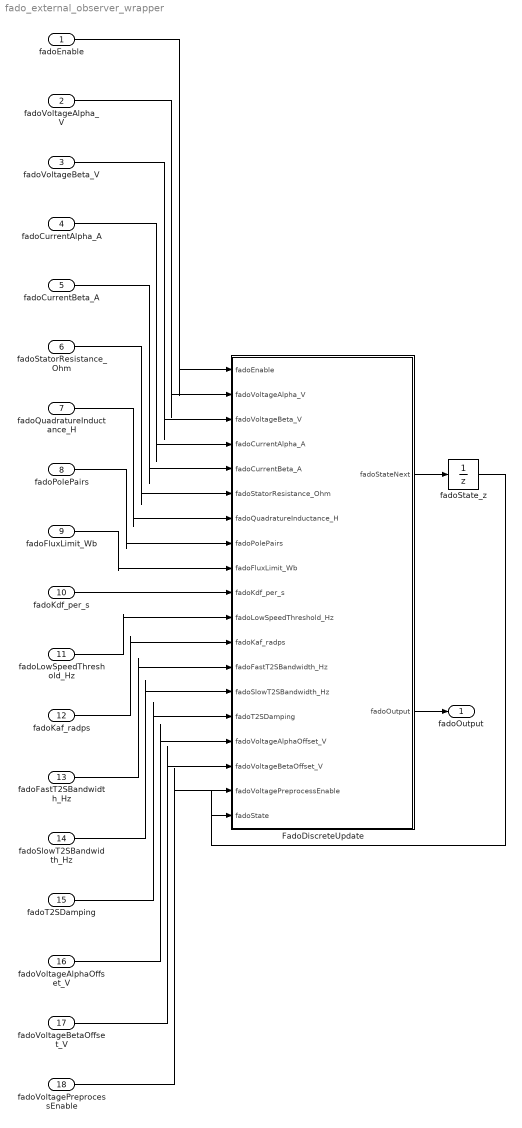
== matlab function fado_external_observer_wrapper/FadoDiscreteUpdate ==
function [fadoStateNext, fadoOutput] = fcn(fadoEnable, fadoVoltageAlpha_V, fadoVoltageBeta_V, fadoCurrentAlpha_A, fadoCurrentBeta_A, fadoStatorResistance_Ohm, fadoQuadratureInductance_H, fadoPolePairs, fadoFluxLimit_Wb, fadoKdf_per_s, fadoLowSpeedThreshold_Hz, fadoKaf_radps, fadoFastT2SBandwidth_Hz, fadoSlowT2SBandwidth_Hz, fadoT2SDamping, fadoVoltageAlphaOffset_V, fadoVoltageBetaOffset_V, fadoVoltagePreprocessEnable, fadoState)
%#codegen
[fadoStateNext, fadoOutput] = fado_external_observer_discrete_update(fadoEnable, fadoVoltageAlpha_V, fadoVoltageBeta_V, fadoCurrentAlpha_A, fadoCurrentBeta_A, fadoStatorResistance_Ohm, fadoQuadratureInductance_H, fadoPolePairs, fadoFluxLimit_Wb, fadoKdf_per_s, fadoLowSpeedThreshold_Hz, fadoKaf_radps, fadoFastT2SBandwidth_Hz, fadoSlowT2SBandwidth_Hz, fadoT2SDamping, fadoVoltageAlphaOffset_V, fadoVoltageBetaOffset_V, fadoVoltagePreprocessEnable, fadoState);
end

/*
 * Academic License - for use in teaching, academic research, and meeting
 * course requirements at degree granting institutions only.  Not for
 * government, commercial, or other organizational use.
 *
 * File: fado_external_observer_wrapper.c
 *
 * Code generated for Simulink model 'fado_external_observer_wrapper'.
 *
 * Model version                  : 1.4
 * Simulink Coder version         : 26.1 (R2026a) 20-Nov-2025
 * C/C++ source code generated on : Mon Aug  3 16:44:39 2026
 *
 * Target selection: ert.tlc
 * Embedded hardware selection: ARM Compatible->ARM Cortex-M
 * Code generation objectives: Unspecified
 * Validation result: Not run
 */

#include "fado_external_observer_wrapper.h"
#include "rtwtypes.h"
#include <string.h>
#include "rt_nonfinite.h"
#include <math.h>
#include "fado_external_observer_wrapper_private.h"
#include "rt_defines.h"

/* Block states (default storage) */
DW_fado_external_observer_wra_T fado_external_observer_wrapp_DW;

/* External inputs (root inport signals with default storage) */
ExtU_fado_external_observer_w_T fado_external_observer_wrappe_U;

/* External outputs (root outports fed by signals with default storage) */
ExtY_fado_external_observer_w_T fado_external_observer_wrappe_Y;

/* Real-time model */
static RT_MODEL_fado_external_observ_T fado_external_observer_wrapp_M_;
RT_MODEL_fado_external_observ_T *const fado_external_observer_wrapp_M =
  &fado_external_observer_wrapp_M_;

/* Forward declaration for local functions */
static real32_T fado_external_observer_wrap_mod(real32_T x);
real32_T rt_atan2f_snf(real32_T u0, real32_T u1)
{
  real32_T y;
  if (rtIsNaNF(u0) || rtIsNaNF(u1)) {
    y = (rtNaNF);
  } else if (rtIsInfF(u0) && rtIsInfF(u1)) {
    int32_T tmp;
    int32_T tmp_0;
    if (u0 > 0.0F) {
      tmp = 1;
    } else {
      tmp = -1;
    }

    if (u1 > 0.0F) {
      tmp_0 = 1;
    } else {
      tmp_0 = -1;
    }

    y = atan2f((real32_T)tmp, (real32_T)tmp_0);
  } else if (u1 == 0.0F) {
    if (u0 > 0.0F) {
      y = RT_PIF / 2.0F;
    } else if (u0 < 0.0F) {
      y = -(RT_PIF / 2.0F);
    } else {
      y = 0.0F;
    }
  } else {
    y = atan2f(u0, u1);
  }

  return y;
}

/* Function for MATLAB Function: '<Root>/FadoDiscreteUpdate' */
static real32_T fado_external_observer_wrap_mod(real32_T x)
{
  real32_T r;
  if (rtIsNaNF(x)) {
    r = (rtNaNF);
  } else if (rtIsInfF(x)) {
    r = (rtNaNF);
  } else {
    /* T2S angles are normalized every sample, so the normal path is at most
     * one turn outside [0, 2*pi). Keep fmodf only as an abnormal fallback. */
    r = x;
    if (r >= 6.2831855F) {
      r -= 6.2831855F;
    } else if (r < 0.0F) {
      r += 6.2831855F;
    }

    if ((r >= 6.2831855F) || (r < 0.0F)) {
      r = fmodf(r, 6.2831855F);
      if (r < 0.0F) {
        r += 6.2831855F;
      }
    }
  }

  return r;
}

/* Model step function */
void fado_external_observer_wrapper_step(void)
{
  int32_T i;
  real32_T rtb_fadoState_z[10];
  real32_T fadoDhatAlpha_Wb;
  real32_T fadoFastNaturalFrequency_radps;
  real32_T fadoFastPhaseError_rad;
  real32_T fadoLambdaAlpha1_Wb;
  real32_T fadoLambdaAlphaDot_V;
  real32_T fadoOmegaFast_radps;
  real32_T fadoOmegaSlow_radps;
  real32_T fadoRotorFluxAlphaLimited_Wb;
  real32_T fadoRotorFluxAlpha_Wb;
  real32_T fadoRotorFluxBetaLimited_Wb;
  real32_T fadoRotorFluxBeta_Wb;
  real32_T fadoRotorFluxBeta_Wb_tmp;
  real32_T fadoRotorFluxMag_Wb;
  real32_T fadoThetaDirect_rad;
  boolean_T b[10];
  boolean_T c[10];
  boolean_T exitg1;
  boolean_T fadoFluxLimited;
  boolean_T fadoKafMode;
  boolean_T y;

  /* MATLAB Function: '<Root>/FadoDiscreteUpdate' incorporates:
   *  Inport: '<Root>/fadoVoltageAlpha_V'
   *  Inport: '<Root>/fadoVoltageBeta_V'
   */
  fadoLambdaAlphaDot_V = fado_external_observer_wrappe_U.fadoVoltageAlpha_V;
  fadoLambdaAlpha1_Wb = fado_external_observer_wrappe_U.fadoVoltageBeta_V;
  for (i = 0; i < 10; i++) {
    /* UnitDelay: '<Root>/fadoState_z' */
    rtb_fadoState_z[i] = fado_external_observer_wrapp_DW.fadoState_z[i];

    /* MATLAB Function: '<Root>/FadoDiscreteUpdate' incorporates:
     *  UnitDelay: '<Root>/fadoState_z'
     */
    fado_external_observer_wrapp_DW.fadoState_z[i] = 0.0F;
  }

  /* Outport: '<Root>/fadoOutput' incorporates:
   *  MATLAB Function: '<Root>/FadoDiscreteUpdate'
   */
  memset(&fado_external_observer_wrappe_Y.fadoOutput[0], 0, 18U * sizeof
         (real32_T));

  /* MATLAB Function: '<Root>/FadoDiscreteUpdate' incorporates:
   *  Inport: '<Root>/fadoCurrentAlpha_A'
   *  Inport: '<Root>/fadoCurrentBeta_A'
   *  Inport: '<Root>/fadoEnable'
   *  Inport: '<Root>/fadoFastT2SBandwidth_Hz'
   *  Inport: '<Root>/fadoFluxLimit_Wb'
   *  Inport: '<Root>/fadoKaf_radps'
   *  Inport: '<Root>/fadoKdf_per_s'
   *  Inport: '<Root>/fadoLowSpeedThreshold_Hz'
   *  Inport: '<Root>/fadoPolePairs'
   *  Inport: '<Root>/fadoQuadratureInductance_H'
   *  Inport: '<Root>/fadoSlowT2SBandwidth_Hz'
   *  Inport: '<Root>/fadoStatorResistance_Ohm'
   *  Inport: '<Root>/fadoT2SDamping'
   *  Inport: '<Root>/fadoVoltageAlphaOffset_V'
   *  Inport: '<Root>/fadoVoltageAlpha_V'
   *  Inport: '<Root>/fadoVoltageBetaOffset_V'
   *  Inport: '<Root>/fadoVoltageBeta_V'
   *  Inport: '<Root>/fadoVoltagePreprocessEnable'
   *  Outport: '<Root>/fadoOutput'
   *  UnitDelay: '<Root>/fadoState_z'
   */
  if (fado_external_observer_wrappe_U.fadoEnable) {
    fado_external_observer_wrappe_Y.fadoOutput[17] = 1.0F;
    if (rtIsInfF(fado_external_observer_wrappe_U.fadoStatorResistance_Ohm) ||
        rtIsNaNF(fado_external_observer_wrappe_U.fadoStatorResistance_Ohm) ||
        (rtIsInfF(fado_external_observer_wrappe_U.fadoQuadratureInductance_H) ||
         rtIsNaNF(fado_external_observer_wrappe_U.fadoQuadratureInductance_H) ||
         (rtIsInfF(fado_external_observer_wrappe_U.fadoFluxLimit_Wb) || rtIsNaNF
          (fado_external_observer_wrappe_U.fadoFluxLimit_Wb) || (rtIsInfF
           (fado_external_observer_wrappe_U.fadoKdf_per_s) || rtIsNaNF
           (fado_external_observer_wrappe_U.fadoKdf_per_s) || (rtIsInfF
            (fado_external_observer_wrappe_U.fadoLowSpeedThreshold_Hz) ||
            rtIsNaNF(fado_external_observer_wrappe_U.fadoLowSpeedThreshold_Hz) ||
            (rtIsInfF(fado_external_observer_wrappe_U.fadoKaf_radps) || rtIsNaNF
             (fado_external_observer_wrappe_U.fadoKaf_radps) || (rtIsInfF
              (fado_external_observer_wrappe_U.fadoFastT2SBandwidth_Hz) ||
              rtIsNaNF(fado_external_observer_wrappe_U.fadoFastT2SBandwidth_Hz) ||
              (rtIsInfF(fado_external_observer_wrappe_U.fadoSlowT2SBandwidth_Hz)
               || rtIsNaNF
               (fado_external_observer_wrappe_U.fadoSlowT2SBandwidth_Hz) ||
               (rtIsInfF(fado_external_observer_wrappe_U.fadoT2SDamping) ||
                rtIsNaNF(fado_external_observer_wrappe_U.fadoT2SDamping) ||
                (rtIsInfF
                 (fado_external_observer_wrappe_U.fadoVoltageAlphaOffset_V) ||
                 rtIsNaNF
                 (fado_external_observer_wrappe_U.fadoVoltageAlphaOffset_V) ||
                 (rtIsInfF
                  (fado_external_observer_wrappe_U.fadoVoltageBetaOffset_V) ||
                  rtIsNaNF
                  (fado_external_observer_wrappe_U.fadoVoltageBetaOffset_V) || (
        !(fado_external_observer_wrappe_U.fadoStatorResistance_Ohm > 0.0F) ||
        !(fado_external_observer_wrappe_U.fadoQuadratureInductance_H > 0.0F) ||
        (fado_external_observer_wrappe_U.fadoPolePairs <= 0) ||
        !(fado_external_observer_wrappe_U.fadoFluxLimit_Wb > 0.0F) ||
        !(fado_external_observer_wrappe_U.fadoKdf_per_s >= 0.0F) ||
        !(fado_external_observer_wrappe_U.fadoLowSpeedThreshold_Hz >= 0.0F) ||
        !(fado_external_observer_wrappe_U.fadoKaf_radps > 0.0F) ||
        !(fado_external_observer_wrappe_U.fadoFastT2SBandwidth_Hz > 0.0F) ||
        !(fado_external_observer_wrappe_U.fadoSlowT2SBandwidth_Hz > 0.0F) ||
        !(fado_external_observer_wrappe_U.fadoT2SDamping > 0.0F))))))))))))) {
      fado_external_observer_wrappe_Y.fadoOutput[16] = 3.0F;
    } else {
      if (fado_external_observer_wrappe_U.fadoVoltagePreprocessEnable) {
        fadoLambdaAlphaDot_V =
          fado_external_observer_wrappe_U.fadoVoltageAlpha_V +
          fado_external_observer_wrappe_U.fadoVoltageAlphaOffset_V;
        fadoLambdaAlpha1_Wb = fado_external_observer_wrappe_U.fadoVoltageBeta_V
          + fado_external_observer_wrappe_U.fadoVoltageBetaOffset_V;
      }

      fadoDhatAlpha_Wb = fabsf(rtb_fadoState_z[8]);
      fadoKafMode = (fadoDhatAlpha_Wb <= 6.2831855F *
                     fado_external_observer_wrappe_U.fadoLowSpeedThreshold_Hz);
      fadoFluxLimited = false;
      fadoOmegaFast_radps =
        fado_external_observer_wrappe_U.fadoQuadratureInductance_H *
        fado_external_observer_wrappe_U.fadoCurrentAlpha_A;
      fadoRotorFluxAlpha_Wb = (rtb_fadoState_z[0] - rtb_fadoState_z[4]) -
        fadoOmegaFast_radps;
      fadoRotorFluxBeta_Wb_tmp =
        fado_external_observer_wrappe_U.fadoQuadratureInductance_H *
        fado_external_observer_wrappe_U.fadoCurrentBeta_A;
      fadoRotorFluxBeta_Wb = (rtb_fadoState_z[1] - rtb_fadoState_z[5]) -
        fadoRotorFluxBeta_Wb_tmp;
      fadoRotorFluxMag_Wb = sqrtf(fadoRotorFluxAlpha_Wb * fadoRotorFluxAlpha_Wb
        + fadoRotorFluxBeta_Wb * fadoRotorFluxBeta_Wb);
      if (fadoKafMode) {
        fadoRotorFluxAlphaLimited_Wb = fadoRotorFluxAlpha_Wb;
        fadoRotorFluxBetaLimited_Wb = fadoRotorFluxBeta_Wb;
        if (fadoRotorFluxMag_Wb >
            fado_external_observer_wrappe_U.fadoFluxLimit_Wb) {
          fadoRotorFluxBetaLimited_Wb =
            fado_external_observer_wrappe_U.fadoFluxLimit_Wb /
            fadoRotorFluxMag_Wb;
          fadoRotorFluxAlphaLimited_Wb = fadoRotorFluxAlpha_Wb *
            fadoRotorFluxBetaLimited_Wb;
          fadoRotorFluxBetaLimited_Wb *= fadoRotorFluxBeta_Wb;
          fadoFluxLimited = true;
        }

        fadoLambdaAlphaDot_V = (fadoLambdaAlphaDot_V -
          fado_external_observer_wrappe_U.fadoStatorResistance_Ohm *
          fado_external_observer_wrappe_U.fadoCurrentAlpha_A) -
          (fadoRotorFluxAlpha_Wb - fadoRotorFluxAlphaLimited_Wb) *
          fado_external_observer_wrappe_U.fadoKaf_radps;
        fadoRotorFluxAlpha_Wb = (fadoLambdaAlpha1_Wb -
          fado_external_observer_wrappe_U.fadoStatorResistance_Ohm *
          fado_external_observer_wrappe_U.fadoCurrentBeta_A) -
          (fadoRotorFluxBeta_Wb - fadoRotorFluxBetaLimited_Wb) *
          fado_external_observer_wrappe_U.fadoKaf_radps;
        fadoRotorFluxBeta_Wb = 0.0F;
      } else {
        fadoRotorFluxBeta_Wb = fado_external_observer_wrappe_U.fadoKdf_per_s;
        fadoLambdaAlphaDot_V = (fadoLambdaAlphaDot_V -
          fado_external_observer_wrappe_U.fadoStatorResistance_Ohm *
          fado_external_observer_wrappe_U.fadoCurrentAlpha_A) -
          fado_external_observer_wrappe_U.fadoKdf_per_s * rtb_fadoState_z[4];
        fadoRotorFluxAlpha_Wb = (fadoLambdaAlpha1_Wb -
          fado_external_observer_wrappe_U.fadoStatorResistance_Ohm *
          fado_external_observer_wrappe_U.fadoCurrentBeta_A) -
          fado_external_observer_wrappe_U.fadoKdf_per_s * rtb_fadoState_z[5];
      }

      fadoLambdaAlpha1_Wb = 5.0E-5F * fadoLambdaAlphaDot_V + rtb_fadoState_z[0];
      fadoLambdaAlphaDot_V = 5.0E-5F * fadoRotorFluxAlpha_Wb + rtb_fadoState_z[1];
      fadoRotorFluxAlphaLimited_Wb = fadoLambdaAlpha1_Wb - rtb_fadoState_z[2];
      fadoRotorFluxAlpha_Wb = fadoLambdaAlphaDot_V - rtb_fadoState_z[3];
      fadoDhatAlpha_Wb *= 2.0F;
      fado_external_observer_wrapp_DW.fadoState_z[2] = (((-rtb_fadoState_z[8] *
        rtb_fadoState_z[3] + rtb_fadoState_z[5] * rtb_fadoState_z[8]) +
        fadoDhatAlpha_Wb * fadoRotorFluxAlphaLimited_Wb) - rtb_fadoState_z[8] *
        fadoRotorFluxAlpha_Wb) * 5.0E-5F + rtb_fadoState_z[2];
      fadoRotorFluxAlphaLimited_Wb *= rtb_fadoState_z[8];
      fado_external_observer_wrapp_DW.fadoState_z[3] = (((rtb_fadoState_z[2] *
        rtb_fadoState_z[8] - rtb_fadoState_z[4] * rtb_fadoState_z[8]) +
        fadoRotorFluxAlphaLimited_Wb) + fadoDhatAlpha_Wb * fadoRotorFluxAlpha_Wb)
        * 5.0E-5F + rtb_fadoState_z[3];
      fadoDhatAlpha_Wb = -rtb_fadoState_z[8] * fadoRotorFluxAlpha_Wb * 5.0E-5F +
        rtb_fadoState_z[4];
      fadoRotorFluxAlpha_Wb = fadoRotorFluxAlphaLimited_Wb * 5.0E-5F +
        rtb_fadoState_z[5];
      fadoRotorFluxAlphaLimited_Wb = fadoLambdaAlpha1_Wb - fadoDhatAlpha_Wb;
      fadoRotorFluxBetaLimited_Wb = fadoLambdaAlphaDot_V - fadoRotorFluxAlpha_Wb;
      fadoThetaDirect_rad = rt_atan2f_snf(fadoRotorFluxBetaLimited_Wb -
        fadoRotorFluxBeta_Wb_tmp, fadoRotorFluxAlphaLimited_Wb -
        fadoOmegaFast_radps);
      fadoFastNaturalFrequency_radps = 6.2831855F *
        fado_external_observer_wrappe_U.fadoFastT2SBandwidth_Hz;
      fadoFastPhaseError_rad = fado_external_observer_wrap_mod
        ((fadoThetaDirect_rad - rtb_fadoState_z[6]) + 3.1415927F) - 3.1415927F;
      fadoOmegaFast_radps = 5.0E-5F * fadoFastNaturalFrequency_radps *
        fadoFastNaturalFrequency_radps * fadoFastPhaseError_rad +
        rtb_fadoState_z[8];
      fadoRotorFluxBeta_Wb_tmp = 2.0F *
        fado_external_observer_wrappe_U.fadoT2SDamping;
      fadoFastNaturalFrequency_radps = fado_external_observer_wrap_mod
        (((fadoRotorFluxBeta_Wb_tmp * fadoFastNaturalFrequency_radps *
           fadoFastPhaseError_rad + fadoOmegaFast_radps) * 5.0E-5F +
          rtb_fadoState_z[6]) + 3.1415927F) - 3.1415927F;
      fadoFastPhaseError_rad = 6.2831855F *
        fado_external_observer_wrappe_U.fadoSlowT2SBandwidth_Hz;
      fadoThetaDirect_rad = fado_external_observer_wrap_mod((fadoThetaDirect_rad
        - rtb_fadoState_z[7]) + 3.1415927F) - 3.1415927F;
      fadoOmegaSlow_radps = 5.0E-5F * fadoFastPhaseError_rad *
        fadoFastPhaseError_rad * fadoThetaDirect_rad + rtb_fadoState_z[9];
      fado_external_observer_wrapp_DW.fadoState_z[7] =
        fado_external_observer_wrap_mod(((fadoRotorFluxBeta_Wb_tmp *
        fadoFastPhaseError_rad * fadoThetaDirect_rad + fadoOmegaSlow_radps) *
        5.0E-5F + rtb_fadoState_z[7]) + 3.1415927F) - 3.1415927F;
      fado_external_observer_wrapp_DW.fadoState_z[0] = fadoLambdaAlpha1_Wb;
      fado_external_observer_wrapp_DW.fadoState_z[1] = fadoLambdaAlphaDot_V;
      fado_external_observer_wrapp_DW.fadoState_z[4] = fadoDhatAlpha_Wb;
      fado_external_observer_wrapp_DW.fadoState_z[5] = fadoRotorFluxAlpha_Wb;
      fado_external_observer_wrapp_DW.fadoState_z[6] =
        fadoFastNaturalFrequency_radps;
      fado_external_observer_wrapp_DW.fadoState_z[8] = fadoOmegaFast_radps;
      fado_external_observer_wrapp_DW.fadoState_z[9] = fadoOmegaSlow_radps;
      for (i = 0; i < 10; i++) {
        b[i] = !rtIsInfF(fado_external_observer_wrapp_DW.fadoState_z[i]);
        c[i] = !rtIsNaNF(fado_external_observer_wrapp_DW.fadoState_z[i]);
      }

      y = true;
      i = 0;
      exitg1 = false;
      while (!exitg1 && (i < 10)) {
        if (!b[i] || !c[i]) {
          y = false;
          exitg1 = true;
        } else {
          i++;
        }
      }

      if (!y) {
        for (i = 0; i < 10; i++) {
          fado_external_observer_wrapp_DW.fadoState_z[i] = 0.0F;
        }

        fado_external_observer_wrappe_Y.fadoOutput[16] = 2.0F;
      } else {
        fado_external_observer_wrappe_Y.fadoOutput[0] =
          fado_external_observer_wrap_mod(fadoFastNaturalFrequency_radps);
        fado_external_observer_wrappe_Y.fadoOutput[1] = fadoOmegaFast_radps;
        fado_external_observer_wrappe_Y.fadoOutput[2] = fadoOmegaSlow_radps;
        fado_external_observer_wrappe_Y.fadoOutput[3] = fadoOmegaSlow_radps /
          (6.2831855F * (real32_T)fado_external_observer_wrappe_U.fadoPolePairs)
          * 60.0F;
        fado_external_observer_wrappe_Y.fadoOutput[4] = fadoLambdaAlpha1_Wb;
        fado_external_observer_wrappe_Y.fadoOutput[5] = fadoLambdaAlphaDot_V;
        fado_external_observer_wrappe_Y.fadoOutput[6] =
          fadoRotorFluxAlphaLimited_Wb;
        fado_external_observer_wrappe_Y.fadoOutput[7] =
          fadoRotorFluxBetaLimited_Wb;
        fado_external_observer_wrappe_Y.fadoOutput[8] = fadoDhatAlpha_Wb;
        fado_external_observer_wrappe_Y.fadoOutput[9] = fadoRotorFluxAlpha_Wb;
        fado_external_observer_wrappe_Y.fadoOutput[10] = fadoRotorFluxMag_Wb;
        fado_external_observer_wrappe_Y.fadoOutput[11] = fadoRotorFluxBeta_Wb;
        fado_external_observer_wrappe_Y.fadoOutput[12] = (real32_T)!fadoKafMode;
        fado_external_observer_wrappe_Y.fadoOutput[13] = fadoKafMode;
        fado_external_observer_wrappe_Y.fadoOutput[14] = fadoFluxLimited;
        fado_external_observer_wrappe_Y.fadoOutput[15] = 1.0F;
        fado_external_observer_wrappe_Y.fadoOutput[16] = 1.0F;
      }
    }
  }
}
